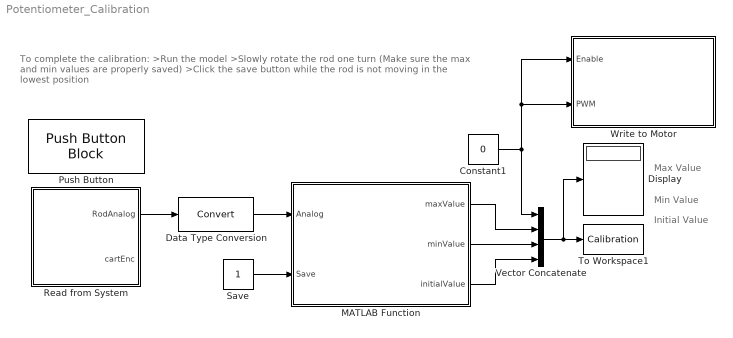
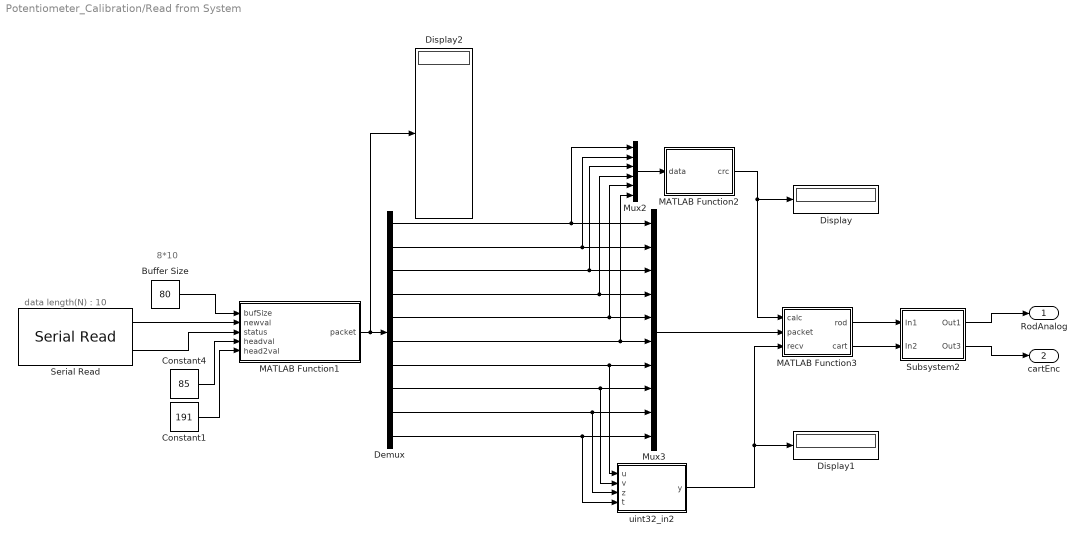
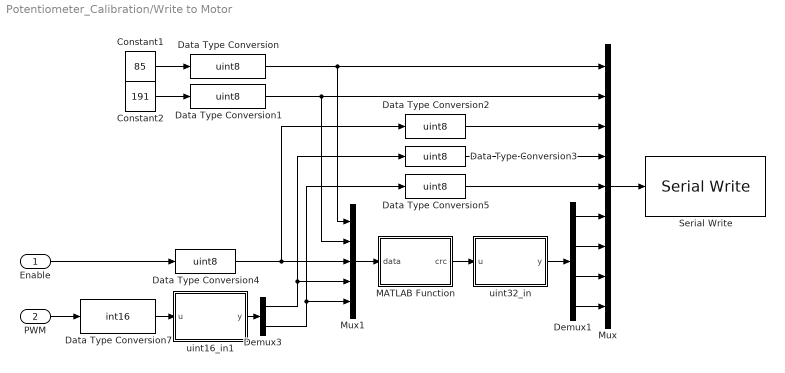
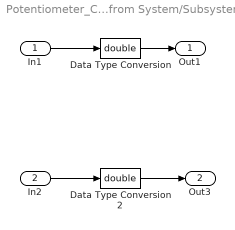
== matlab function Potentiometer_Calibration/MATLAB Function ==
function [maxValue,minValue,initialValue] = fcn(Analog,Save)
    persistent maxAnalog
    if isempty(maxAnalog)
        maxAnalog=500;
    end
    persistent minAnalog
    if isempty(minAnalog)
        minAnalog=500;
    end
    if (Analog>maxAnalog)
        maxAnalog=Analog;
    end
    if (minAnalog > Analog)
        if (Analog  ~= 0)
            minAnalog=Analog;
        end
    end
    if (Save==1)
        maxValue=maxAnalog;
        minValue=minAnalog;
        initialValue=Analog;
    else
        maxValue=500;
        minValue=500;
        initialValue=Analog;
    end
end

== matlab function Potentiometer_Calibration/Write to Motor/MATLAB Function ==
function crc = crc_32(data)

% Computes the CRC-32/MPEG-2 checksum value of a byte vector.
% Uses a left shifting (not reflected) CRC along with the 
% CRC polynomial 0x04C11DB7 and initial CRC value of 0xFFFFFFFF,
% and is not post complemented.
%--------------------------------------------------------------------------
%   Version:    130
%   Programmer: Oliver Calderbank
%   Date:       21-07-2019

% Initialize variables
crc  = uint32(hex2dec('FFFFFFFF'));
poly = uint32(hex2dec('04C11DB7'));
data = uint8(data);
temp = uint32(data);

for i = 1:length(data)
    % xor next byte to upper bits of crc
    crc = bitxor(crc,uint32(bitshift(temp(i),24)));
    for j = 1:8
        msb = bitsra(crc,31);
        crc = bitsll(crc,1);
        if msb == 1 
            crc = bitxor(crc,poly);
        end 
    end
end
end

== matlab function Potentiometer_Calibration/Write to Motor/uint16_in1 ==
function y = fcn(u)
t=typecast(int16(u),'uint8');
y = [t(1) t(2)];

== matlab function Potentiometer_Calibration/Write to Motor/uint32_in ==
function y = fcn(u)
t=typecast(uint32(u),'uint8');
y = [t(1) t(2) t(3) t(4)];

== matlab function Potentiometer_Calibration/Read from System/MATLAB Function1 ==
function packet   = fcn(bufSize,newval,status,headval,head2val)
%initializing
persistent val;
persistent bff;
persistent packetindex
if isempty(bff)
    packetindex =uint8(zeros(1,10));
end
if isempty(val)
    val=0;
    bff = zeros(bufSize,1); %initializing
    inc=0;
else
    inc=1;
end

ind =uint8( mod(val-1,bufSize) + 1); %current index
if isempty(bff)
    bff = zeros(bufSize,1); %initializing
end
if status==0  %UART Status
    for i = 1:1:10
        bff(mod(ind-1+i-1,bufSize)+1) = newval(i); %adding the circular buffer
    end
    if inc==1
        val=val+10;   
    end
end
if ind==0
    val=0;
end
buffout =uint8( bff((1:80)));  % whole buffer
head=uint8(find(bff(ind+1:end)==headval)+double(ind)); %finding first header
if isempty(head)
    head=uint8(find(bff(1:end)==headval));
end
if bff(mod(head(1),bufSize)+1)==head2val %header2 check
    packetindex=[mod(head(1)-1,bufSize)+1 mod(head(1),bufSize)+1 mod(head(1)+1,bufSize)+1 mod(head(1)+2,bufSize)+1 ... %adding correct package's index to array
                 mod(head(1)+3,bufSize)+1 mod(head(1)+4,bufSize)+1 mod(head(1)+5,bufSize)+1 mod(head(1)+6,bufSize)+1 mod(head(1)+7,bufSize)+1 mod(head(1)+8,bufSize)+1];
end
lastadd=uint8(bff(head(1)+1));
packet=bff(packetindex);

== matlab function Potentiometer_Calibration/Read from System/MATLAB Function2 ==
function crc = crc_32(data)

% Computes the CRC-32/MPEG-2 checksum value of a byte vector.
% Uses a left shifting (not reflected) CRC along with the 
% CRC polynomial 0x04C11DB7 and initial CRC value of 0xFFFFFFFF,
% and is not post complemented.
%--------------------------------------------------------------------------
%   Version:    130
%   Programmer: Oliver Calderbank
%   Date:       21-07-2019

% Initialize variables
crc  = uint32(hex2dec('FFFFFFFF'));
poly = uint32(hex2dec('04C11DB7'));
data = uint8(data);
temp = uint32(data);

for i = 1:length(data)
    % xor next byte to upper bits of crc
    crc = bitxor(crc,uint32(bitshift(temp(i),24)));
    for j = 1:8
        msb = bitsra(crc,31);
        crc = bitsll(crc,1);
        if msb == 1 
            crc = bitxor(crc,poly);
        end 
    end
end
end

== matlab function Potentiometer_Calibration/Read from System/MATLAB Function3 ==
function [rod,cart] = fcn(calc,packet,recv)
persistent validpack;
persistent validpack2;
if isempty(validpack)
    Axisx=[packet(3) packet(4)];
    validpack=typecast(uint8(Axisx),'int16');
end
if isempty(validpack2)
    Axisy=[packet(5) packet(6)];
    validpack2=typecast(uint8(Axisy),'int16');
end
if calc==recv
    Axisx=[packet(3) packet(4)];
    validpack=typecast(uint8(Axisx),'int16');
    Axisy=[packet(5) packet(6)];
    validpack2=typecast(uint8(Axisy),'int16');
    rod=validpack;
    cart=validpack2;
else
	rod=validpack;
    cart=validpack2;
end

== matlab function Potentiometer_Calibration/Read from System/uint32_in2 ==
function y = fcn(u,v,z,t)
x=[u v z t];
k=typecast(uint8(x),'uint32');
y = k;

/*
 * Academic License - for use in teaching, academic research, and meeting
 * course requirements at degree granting institutions only.  Not for
 * government, commercial, or other organizational use.
 *
 * File: Potentiometer_Calibration.c
 *
 * Code generated for Simulink model 'Potentiometer_Calibration'.
 *
 * Model version                  : 16.1
 * Simulink Coder version         : 25.1 (R2025a) 21-Nov-2024
 * C/C++ source code generated on : Tue Mar 31 16:47:10 2026
 *
 * Target selection: ert.tlc
 * Embedded hardware selection: ARM Compatible->ARM Cortex-A (64-bit)
 * Code generation objectives: Unspecified
 * Validation result: Not run
 */

#include "Potentiometer_Calibration.h"
#include "rtwtypes.h"
#include "Potentiometer_Calibration_types.h"
#include <string.h>
#include "Potentiometer_Calibration_private.h"
#include "rt_nonfinite.h"
#include <math.h>
#include <stddef.h>

/* Block signals (default storage) */
B_Potentiometer_Calibration_T Potentiometer_Calibration_B;

/* Block states (default storage) */
DW_Potentiometer_Calibration_T Potentiometer_Calibration_DW;

/* Real-time model */
static RT_MODEL_Potentiometer_Calibr_T Potentiometer_Calibration_M_;
RT_MODEL_Potentiometer_Calibr_T *const Potentiometer_Calibration_M =
  &Potentiometer_Calibration_M_;

/* Forward declaration for local functions */
static void Potentiometer_Calibrat_eml_find(const boolean_T x_data[], const
  int32_T *x_size, int32_T i_data[], int32_T *i_size);
static void Potentiometer__SystemCore_setup(codertarget_raspi_internal_SC_T *obj);
static void Potentiomete_SCIWrite_setupImpl(codertarget_raspi_internal__h_T *obj);
real_T rt_roundd_snf(real_T u)
{
  real_T y;
  if (fabs(u) < 4.503599627370496E+15) {
    if (u >= 0.5) {
      y = floor(u + 0.5);
    } else if (u > -0.5) {
      y = u * 0.0;
    } else {
      y = ceil(u - 0.5);
    }
  } else {
    y = u;
  }

  return y;
}

/* Function for MATLAB Function: '<S2>/MATLAB Function1' */
static void Potentiometer_Calibrat_eml_find(const boolean_T x_data[], const
  int32_T *x_size, int32_T i_data[], int32_T *i_size)
{
  int32_T idx;
  int32_T ii;
  boolean_T exitg1;
  idx = 0;
  *i_size = *x_size;
  ii = 0;
  exitg1 = false;
  while ((!exitg1) && (ii <= *x_size - 1)) {
    if (x_data[ii]) {
      idx++;
      i_data[idx - 1] = ii + 1;
      if (idx >= *x_size) {
        exitg1 = true;
      } else {
        ii++;
      }
    } else {
      ii++;
    }
  }

  if (*x_size == 1) {
    if (idx == 0) {
      *i_size = 0;
    }
  } else if (idx < 1) {
    *i_size = 0;
  } else {
    *i_size = idx;
  }
}

static void Potentiometer__SystemCore_setup(codertarget_raspi_internal_SC_T *obj)
{
  void* SCIModuleVoidPtr;
  int32_T i;
  char_T b_SCIModuleLoc[13];
  static const char_T b_SCIModuleLoc_0[13] = "/dev/serial0";

  /* Start for MATLABSystem: '<S2>/Serial Read' */
  obj->isInitialized = 1;
  for (i = 0; i < 13; i++) {
    /* Start for MATLABSystem: '<S2>/Serial Read' */
    b_SCIModuleLoc[i] = b_SCIModuleLoc_0[i];
  }

  SCIModuleVoidPtr = (void*)(&b_SCIModuleLoc[0]);

  /* Start for MATLABSystem: '<S2>/Serial Read' */
  obj->MW_SCIHANDLE = MW_SCI_Open(SCIModuleVoidPtr, true, MW_UNDEFINED_VALUE,
    MW_UNDEFINED_VALUE);
  MW_SCI_SetBaudrate(obj->MW_SCIHANDLE, 115200U);
  MW_SCI_SetFrameFormat(obj->MW_SCIHANDLE, 8, MW_SCI_PARITY_NONE,
                        MW_SCI_STOPBITS_1);
  obj->isSetupComplete = true;
}

static void Potentiomete_SCIWrite_setupImpl(codertarget_raspi_internal__h_T *obj)
{
  void* SCIModuleVoidPtr;
  int32_T i;
  char_T b_SCIModuleLoc[13];
  static const char_T b_SCIModuleLoc_0[13] = "/dev/serial0";
  for (i = 0; i < 13; i++) {
    /* Start for MATLABSystem: '<S3>/Serial Write' */
    b_SCIModuleLoc[i] = b_SCIModuleLoc_0[i];
  }

  SCIModuleVoidPtr = (void*)(&b_SCIModuleLoc[0]);

  /* Start for MATLABSystem: '<S3>/Serial Write' */
  obj->MW_SCIHANDLE = MW_SCI_Open(SCIModuleVoidPtr, true, MW_UNDEFINED_VALUE,
    MW_UNDEFINED_VALUE);
  MW_SCI_SetBaudrate(obj->MW_SCIHANDLE, 115200U);
  MW_SCI_SetFrameFormat(obj->MW_SCIHANDLE, 8, MW_SCI_PARITY_NONE,
                        MW_SCI_STOPBITS_1);
}

/* Model step function */
void Potentiometer_Calibration_step(void)
{
  real_T b_r;
  real_T tmp;
  int32_T tmp_data_0[255];
  int32_T i;
  int32_T i_0;
  int32_T inc;
  int32_T loop_ub;
  uint32_T qY;
  uint32_T rtb_crc;
  int16_T rtb_rod;
  uint8_T head_data[255];
  uint8_T RxDataLocChar[10];
  uint8_T rtb_SerialRead_o1_0[10];
  uint8_T TxDataLocChar[9];
  uint8_T rtb_TmpSignalConversionAtSerial[9];
  uint8_T rtb_TmpSignalConversionAtSFunct[5];
  uint8_T t_0[4];
  uint8_T t[2];
  uint8_T d_x;
  uint8_T e_x;
  uint8_T f_x;
  uint8_T g_x;
  uint8_T h_x;
  uint8_T i_x;
  uint8_T j_x;
  uint8_T rtb_DataTypeConversion4;
  uint8_T status;
  uint8_T xi;
  boolean_T tmp_data[255];

  /* SignalConversion generated from: '<Root>/Vector Concatenate' incorporates:
   *  Concatenate: '<Root>/Vector Concatenate'
   *  Constant: '<Root>/Constant1'
   */
  Potentiometer_Calibration_B.VectorConcatenate[0] =
    Potentiometer_Calibration_P.Constant1_Value;

  /* MATLABSystem: '<S2>/Serial Read' */
  status = MW_SCI_Receive(Potentiometer_Calibration_DW.obj.MW_SCIHANDLE,
    &RxDataLocChar[0], 10U);
  memcpy((void *)&rtb_SerialRead_o1_0[0], (void *)&RxDataLocChar[0], (uint32_T)
         ((size_t)10 * sizeof(uint8_T)));

  /* MATLAB Function: '<S2>/MATLAB Function1' incorporates:
   *  Constant: '<S2>/Buffer Size'
   *  Constant: '<S2>/Constant1'
   *  Constant: '<S2>/Constant4'
   *  MATLABSystem: '<S2>/Serial Read'
   * */
  if (!Potentiometer_Calibration_DW.bff_not_empty) {
    for (i = 0; i < 10; i++) {
      Potentiometer_Calibration_DW.packetindex[i] = 0U;
    }
  }

  if (!Potentiometer_Calibration_DW.val_not_empty) {
    Potentiometer_Calibration_DW.val_not_empty = true;
    Potentiometer_Calibration_DW.bff.size =
      Potentiometer_Calibration_P.BufferSize_Value;
    loop_ub = Potentiometer_Calibration_P.BufferSize_Value;
    if (loop_ub - 1 >= 0) {
      memset(&Potentiometer_Calibration_DW.bff.data[0], 0, (uint32_T)loop_ub *
             sizeof(real_T));
    }

    Potentiometer_Calibration_DW.bff_not_empty =
      (Potentiometer_Calibration_DW.bff.size != 0);
    inc = 0;
  } else {
    inc = 1;
  }

  b_r = rt_roundd_snf(Potentiometer_Calibration_DW.val - 1.0);
  if (b_r < 256.0) {
    if (b_r >= 0.0) {
      xi = (uint8_T)b_r;
    } else {
      xi = 0U;
    }
  } else {
    xi = MAX_uint8_T;
  }

  if (Potentiometer_Calibration_DW.val - 1.0 == xi) {
    if (Potentiometer_Calibration_P.BufferSize_Value != 0) {
      xi -= (uint8_T)((uint8_T)((uint32_T)xi /
        Potentiometer_Calibration_P.BufferSize_Value) *
                      Potentiometer_Calibration_P.BufferSize_Value);
    }
  } else {
    if (Potentiometer_Calibration_P.BufferSize_Value == 0) {
      b_r = Potentiometer_Calibration_DW.val - 1.0;
      if (Potentiometer_Calibration_DW.val - 1.0 == 0.0) {
        b_r = 0.0;
      }
    } else if (rtIsInf(Potentiometer_Calibration_DW.val - 1.0)) {
      b_r = (rtNaN);
    } else {
      b_r = fmod(Potentiometer_Calibration_DW.val - 1.0,
                 Potentiometer_Calibration_P.BufferSize_Value);
      if (b_r == 0.0) {
        b_r = 0.0;
      } else if (b_r < 0.0) {
        b_r = (real_T)Potentiometer_Calibration_P.BufferSize_Value - 1.0;
      }
    }

    b_r = rt_roundd_snf(b_r);
    if (b_r < 256.0) {
      if (b_r >= 0.0) {
        xi = (uint8_T)b_r;
      } else {
        xi = 0U;
      }
    } else {
      xi = MAX_uint8_T;
    }
  }

  qY = xi + 1U;
  if (xi + 1U > 255U) {
    qY = 255U;
  }

  if (!Potentiometer_Calibration_DW.bff_not_empty) {
    Potentiometer_Calibration_DW.bff.size =
      Potentiometer_Calibration_P.BufferSize_Value;
    loop_ub = Potentiometer_Calibration_P.BufferSize_Value;
    if (loop_ub - 1 >= 0) {
      memset(&Potentiometer_Calibration_DW.bff.data[0], 0, (uint32_T)loop_ub *
             sizeof(real_T));
    }

    Potentiometer_Calibration_DW.bff_not_empty =
      (Potentiometer_Calibration_DW.bff.size != 0);
  }

  if (status == 0) {
    for (i = 0; i < 10; i++) {
      i_0 = (uint8_T)qY + i;
      if (i_0 > 255) {
        i_0 = 255;
      }

      status = (uint8_T)(i_0 - 1);
      if (Potentiometer_Calibration_P.BufferSize_Value != 0) {
        status = (uint8_T)((uint8_T)(i_0 - 1) - (uint8_T)((uint8_T)((uint32_T)
          (uint8_T)(i_0 - 1) / Potentiometer_Calibration_P.BufferSize_Value) *
          Potentiometer_Calibration_P.BufferSize_Value));
      }

      rtb_crc = status + 1U;
      if (status + 1U > 255U) {
        rtb_crc = 255U;
      }

      Potentiometer_Calibration_DW.bff.data[(int32_T)rtb_crc - 1] =
        rtb_SerialRead_o1_0[i];
    }

    if (inc == 1) {
      Potentiometer_Calibration_DW.val += 10.0;
    }
  }

  rtb_crc = (uint8_T)qY + 1U;
  if ((uint8_T)qY + 1U > 255U) {
    rtb_crc = 255U;
  }

  if ((uint8_T)rtb_crc > Potentiometer_Calibration_DW.bff.size) {
    i = 0;
    inc = 0;
  } else {
    i = (uint8_T)rtb_crc - 1;
    inc = Potentiometer_Calibration_DW.bff.size;
  }

  loop_ub = inc - i;
  for (i_0 = 0; i_0 < loop_ub; i_0++) {
    tmp_data[i_0] = (Potentiometer_Calibration_DW.bff.data[i + i_0] ==
                     Potentiometer_Calibration_P.Constant4_Value);
  }

  Potentiometer_Calibrat_eml_find(tmp_data, &loop_ub, tmp_data_0, &inc);
  for (i_0 = 0; i_0 < inc; i_0++) {
    b_r = (real_T)tmp_data_0[i_0] + (real_T)(uint8_T)qY;
    if (b_r < 256.0) {
      if (b_r >= 0.0) {
        head_data[i_0] = (uint8_T)b_r;
      } else {
        head_data[i_0] = 0U;
      }
    } else {
      head_data[i_0] = MAX_uint8_T;
    }
  }

  if (inc == 0) {
    loop_ub = Potentiometer_Calibration_DW.bff.size;
    i = Potentiometer_Calibration_DW.bff.size;
    for (i_0 = 0; i_0 < loop_ub; i_0++) {
      tmp_data[i_0] = (Potentiometer_Calibration_DW.bff.data[i_0] ==
                       Potentiometer_Calibration_P.Constant4_Value);
    }

    Potentiometer_Calibrat_eml_find(tmp_data, &i, tmp_data_0, &inc);
    for (i_0 = 0; i_0 < inc; i_0++) {
      i = tmp_data_0[i_0];
      if (i < 0) {
        i = 0;
      } else if (i > 255) {
        i = 255;
      }

      head_data[i_0] = (uint8_T)i;
    }
  }

  if (Potentiometer_Calibration_P.BufferSize_Value == 0) {
    xi = head_data[0];
  } else {
    xi = (uint8_T)(head_data[0] - (uint8_T)((uint8_T)((uint32_T)head_data[0] /
      Potentiometer_Calibration_P.BufferSize_Value) *
      Potentiometer_Calibration_P.BufferSize_Value));
  }

  qY = xi + 1U;
  if (xi + 1U > 255U) {
    qY = 255U;
  }

  if (Potentiometer_Calibration_DW.bff.data[(int32_T)qY - 1] ==
      Potentiometer_Calibration_P.Constant1_Value_k) {
    qY = head_data[0] -
      /*MW:operator MISRA2012:D4.1 CERT-C:INT30-C 'Justifying MISRA C rule violation'*/
      /*MW:OvSatOk*/ 1U;
    if (head_data[0] - 1U > head_data[0]) {
      qY = 0U;
    }

    xi = (uint8_T)qY;
    if (Potentiometer_Calibration_P.BufferSize_Value == 0) {
      status = head_data[0];
    } else {
      xi = (uint8_T)((uint8_T)qY - (uint8_T)((uint8_T)((uint32_T)(uint8_T)qY /
        Potentiometer_Calibration_P.BufferSize_Value) *
        Potentiometer_Calibration_P.BufferSize_Value));
      status = (uint8_T)(head_data[0] - (uint8_T)((uint8_T)((uint32_T)head_data
        [0] / Potentiometer_Calibration_P.BufferSize_Value) *
        Potentiometer_Calibration_P.BufferSize_Value));
    }

    qY = head_data[0] + 1U;
    if (head_data[0] + 1U > 255U) {
      qY = 255U;
    }

    rtb_DataTypeConversion4 = (uint8_T)qY;
    if (Potentiometer_Calibration_P.BufferSize_Value != 0) {
      rtb_DataTypeConversion4 = (uint8_T)((uint8_T)qY - (uint8_T)((uint8_T)
        ((uint32_T)(uint8_T)qY / Potentiometer_Calibration_P.BufferSize_Value) *
        Potentiometer_Calibration_P.BufferSize_Value));
    }

    qY = head_data[0] + 2U;
    if (head_data[0] + 2U > 255U) {
      qY = 255U;
    }

    d_x = (uint8_T)qY;
    if (Potentiometer_Calibration_P.BufferSize_Value != 0) {
      d_x = (uint8_T)((uint8_T)qY - (uint8_T)((uint8_T)((uint32_T)(uint8_T)qY /
        Potentiometer_Calibration_P.BufferSize_Value) *
        Potentiometer_Calibration_P.BufferSize_Value));
    }

    qY = head_data[0] + 3U;
    if (head_data[0] + 3U > 255U) {
      qY = 255U;
    }

    e_x = (uint8_T)qY;
    if (Potentiometer_Calibration_P.BufferSize_Value != 0) {
      e_x = (uint8_T)((uint8_T)qY - (uint8_T)((uint8_T)((uint32_T)(uint8_T)qY /
        Potentiometer_Calibration_P.BufferSize_Value) *
        Potentiometer_Calibration_P.BufferSize_Value));
    }

    qY = head_data[0] + 4U;
    if (head_data[0] + 4U > 255U) {
      qY = 255U;
    }

    f_x = (uint8_T)qY;
    if (Potentiometer_Calibration_P.BufferSize_Value != 0) {
      f_x = (uint8_T)((uint8_T)qY - (uint8_T)((uint8_T)((uint32_T)(uint8_T)qY /
        Potentiometer_Calibration_P.BufferSize_Value) *
        Potentiometer_Calibration_P.BufferSize_Value));
    }

    qY = head_data[0] + 5U;
    if (head_data[0] + 5U > 255U) {
      qY = 255U;
    }

    g_x = (uint8_T)qY;
    if (Potentiometer_Calibration_P.BufferSize_Value != 0) {
      g_x = (uint8_T)((uint8_T)qY - (uint8_T)((uint8_T)((uint32_T)(uint8_T)qY /
        Potentiometer_Calibration_P.BufferSize_Value) *
        Potentiometer_Calibration_P.BufferSize_Value));
    }

    qY = head_data[0] + 6U;
    if (head_data[0] + 6U > 255U) {
      qY = 255U;
    }

    h_x = (uint8_T)qY;
    if (Potentiometer_Calibration_P.BufferSize_Value != 0) {
      h_x = (uint8_T)((uint8_T)qY - (uint8_T)((uint8_T)((uint32_T)(uint8_T)qY /
        Potentiometer_Calibration_P.BufferSize_Value) *
        Potentiometer_Calibration_P.BufferSize_Value));
    }

    qY = head_data[0] + 7U;
    if (head_data[0] + 7U > 255U) {
      qY = 255U;
    }

    i_x = (uint8_T)qY;
    if (Potentiometer_Calibration_P.BufferSize_Value != 0) {
      i_x = (uint8_T)((uint8_T)qY - (uint8_T)((uint8_T)((uint32_T)(uint8_T)qY /
        Potentiometer_Calibration_P.BufferSize_Value) *
        Potentiometer_Calibration_P.BufferSize_Value));
    }

    qY = head_data[0] + 8U;
    if (head_data[0] + 8U > 255U) {
      qY = 255U;
    }

    j_x = (uint8_T)qY;
    if (Potentiometer_Calibration_P.BufferSize_Value != 0) {
      j_x = (uint8_T)((uint8_T)qY - (uint8_T)((uint8_T)((uint32_T)(uint8_T)qY /
        Potentiometer_Calibration_P.BufferSize_Value) *
        Potentiometer_Calibration_P.BufferSize_Value));
    }

    qY = xi + 1U;
    if (xi + 1U > 255U) {
      qY = 255U;
    }

    Potentiometer_Calibration_DW.packetindex[0] = (uint8_T)qY;
    qY = status + 1U;
    if (status + 1U > 255U) {
      qY = 255U;
    }

    Potentiometer_Calibration_DW.packetindex[1] = (uint8_T)qY;
    qY = rtb_DataTypeConversion4 + 1U;
    if (rtb_DataTypeConversion4 + 1U > 255U) {
      qY = 255U;
    }

    Potentiometer_Calibration_DW.packetindex[2] = (uint8_T)qY;
    qY = d_x + 1U;
    if (d_x + 1U > 255U) {
      qY = 255U;
    }

    Potentiometer_Calibration_DW.packetindex[3] = (uint8_T)qY;
    qY = e_x + 1U;
    if (e_x + 1U > 255U) {
      qY = 255U;
    }

    Potentiometer_Calibration_DW.packetindex[4] = (uint8_T)qY;
    qY = f_x + 1U;
    if (f_x + 1U > 255U) {
      qY = 255U;
    }

    Potentiometer_Calibration_DW.packetindex[5] = (uint8_T)qY;
    qY = g_x + 1U;
    if (g_x + 1U > 255U) {
      qY = 255U;
    }

    Potentiometer_Calibration_DW.packetindex[6] = (uint8_T)qY;
    qY = h_x + 1U;
    if (h_x + 1U > 255U) {
      qY = 255U;
    }

    Potentiometer_Calibration_DW.packetindex[7] = (uint8_T)qY;
    qY = i_x + 1U;
    if (i_x + 1U > 255U) {
      qY = 255U;
    }

    Potentiometer_Calibration_DW.packetindex[8] = (uint8_T)qY;
    qY = j_x + 1U;
    if (j_x + 1U > 255U) {
      qY = 255U;
    }

    Potentiometer_Calibration_DW.packetindex[9] = (uint8_T)qY;
  }

  for (i_0 = 0; i_0 < 10; i_0++) {
    Potentiometer_Calibration_B.packet[i_0] =
      Potentiometer_Calibration_DW.bff.data[Potentiometer_Calibration_DW.packetindex
      [i_0] - 1];
  }

  /* End of MATLAB Function: '<S2>/MATLAB Function1' */

  /* MATLAB Function: '<S2>/MATLAB Function2' */
  Potentiometer_Calibration_B.crc = MAX_uint32_T;
  for (i = 0; i < 6; i++) {
    b_r = rt_roundd_snf(Potentiometer_Calibration_B.packet[i]);
    if (b_r < 256.0) {
      if (b_r >= 0.0) {
        status = (uint8_T)b_r;
      } else {
        status = 0U;
      }
    } else {
      status = MAX_uint8_T;
    }

    Potentiometer_Calibration_B.crc ^= (uint32_T)status << 24;
    for (inc = 0; inc < 8; inc++) {
      qY = Potentiometer_Calibration_B.crc >> 31;
      Potentiometer_Calibration_B.crc <<= 1;
      if (qY == 1U) {
        Potentiometer_Calibration_B.crc ^= 79764919U;
      }
    }
  }

  /* End of MATLAB Function: '<S2>/MATLAB Function2' */

  /* MATLAB Function: '<S2>/uint32_in2' */
  b_r = rt_roundd_snf(Potentiometer_Calibration_B.packet[6]);
  if (b_r < 256.0) {
    if (b_r >= 0.0) {
      t_0[0] = (uint8_T)b_r;
    } else {
      t_0[0] = 0U;
    }
  } else {
    t_0[0] = MAX_uint8_T;
  }

  b_r = rt_roundd_snf(Potentiometer_Calibration_B.packet[7]);
  if (b_r < 256.0) {
    if (b_r >= 0.0) {
      t_0[1] = (uint8_T)b_r;
    } else {
      t_0[1] = 0U;
    }
  } else {
    t_0[1] = MAX_uint8_T;
  }

  b_r = rt_roundd_snf(Potentiometer_Calibration_B.packet[8]);
  if (b_r < 256.0) {
    if (b_r >= 0.0) {
      t_0[2] = (uint8_T)b_r;
    } else {
      t_0[2] = 0U;
    }
  } else {
    t_0[2] = MAX_uint8_T;
  }

  b_r = rt_roundd_snf(Potentiometer_Calibration_B.packet[9]);
  if (b_r < 256.0) {
    if (b_r >= 0.0) {
      t_0[3] = (uint8_T)b_r;
    } else {
      t_0[3] = 0U;
    }
  } else {
    t_0[3] = MAX_uint8_T;
  }

  memcpy((void *)&Potentiometer_Calibration_B.y, (void *)&t_0[0], (uint32_T)
         ((size_t)1 * sizeof(uint32_T)));

  /* End of MATLAB Function: '<S2>/uint32_in2' */

  /* MATLAB Function: '<S2>/MATLAB Function3' */
  if (!Potentiometer_Calibration_DW.validpack_not_empty) {
    b_r = rt_roundd_snf(Potentiometer_Calibration_B.packet[2]);
    if (b_r < 256.0) {
      if (b_r >= 0.0) {
        t[0] = (uint8_T)b_r;
      } else {
        t[0] = 0U;
      }
    } else {
      t[0] = MAX_uint8_T;
    }

    b_r = rt_roundd_snf(Potentiometer_Calibration_B.packet[3]);
    if (b_r < 256.0) {
      if (b_r >= 0.0) {
        t[1] = (uint8_T)b_r;
      } else {
        t[1] = 0U;
      }
    } else {
      t[1] = MAX_uint8_T;
    }

    memcpy((void *)&Potentiometer_Calibration_DW.validpack, (void *)&t[0],
           (uint32_T)((size_t)1 * sizeof(int16_T)));
    Potentiometer_Calibration_DW.validpack_not_empty = true;
  }

  if (!Potentiometer_Calibration_DW.validpack2_not_empty) {
    b_r = rt_roundd_snf(Potentiometer_Calibration_B.packet[4]);
    if (b_r < 256.0) {
      if (b_r >= 0.0) {
        t[0] = (uint8_T)b_r;
      } else {
        t[0] = 0U;
      }
    } else {
      t[0] = MAX_uint8_T;
    }

    b_r = rt_roundd_snf(Potentiometer_Calibration_B.packet[5]);
    if (b_r < 256.0) {
      if (b_r >= 0.0) {
        t[1] = (uint8_T)b_r;
      } else {
        t[1] = 0U;
      }
    } else {
      t[1] = MAX_uint8_T;
    }

    memcpy((void *)&Potentiometer_Calibration_DW.validpack2, (void *)&t[0],
           (uint32_T)((size_t)1 * sizeof(int16_T)));
    Potentiometer_Calibration_DW.validpack2_not_empty = true;
  }

  if (Potentiometer_Calibration_B.crc == Potentiometer_Calibration_B.y) {
    b_r = rt_roundd_snf(Potentiometer_Calibration_B.packet[2]);
    if (b_r < 256.0) {
      if (b_r >= 0.0) {
        t[0] = (uint8_T)b_r;
      } else {
        t[0] = 0U;
      }
    } else {
      t[0] = MAX_uint8_T;
    }

    b_r = rt_roundd_snf(Potentiometer_Calibration_B.packet[3]);
    if (b_r < 256.0) {
      if (b_r >= 0.0) {
        t[1] = (uint8_T)b_r;
      } else {
        t[1] = 0U;
      }
    } else {
      t[1] = MAX_uint8_T;
    }

    memcpy((void *)&Potentiometer_Calibration_DW.validpack, (void *)&t[0],
           (uint32_T)((size_t)1 * sizeof(int16_T)));
    b_r = rt_roundd_snf(Potentiometer_Calibration_B.packet[4]);
    if (b_r < 256.0) {
      if (b_r >= 0.0) {
        t[0] = (uint8_T)b_r;
      } else {
        t[0] = 0U;
      }
    } else {
      t[0] = MAX_uint8_T;
    }

    b_r = rt_roundd_snf(Potentiometer_Calibration_B.packet[5]);
    if (b_r < 256.0) {
      if (b_r >= 0.0) {
        t[1] = (uint8_T)b_r;
      } else {
        t[1] = 0U;
      }
    } else {
      t[1] = MAX_uint8_T;
    }

    memcpy((void *)&Potentiometer_Calibration_DW.validpack2, (void *)&t[0],
           (uint32_T)((size_t)1 * sizeof(int16_T)));
    rtb_rod = Potentiometer_Calibration_DW.validpack;
  } else {
    rtb_rod = Potentiometer_Calibration_DW.validpack;
  }

  /* End of MATLAB Function: '<S2>/MATLAB Function3' */

  /* MATLAB Function: '<Root>/MATLAB Function' incorporates:
   *  Concatenate: '<Root>/Vector Concatenate'
   *  Constant: '<Root>/Save'
   *  DataTypeConversion: '<S7>/Data Type Conversion'
   */
  if (rtb_rod > Potentiometer_Calibration_DW.maxAnalog) {
    Potentiometer_Calibration_DW.maxAnalog = rtb_rod;
  }

  if ((Potentiometer_Calibration_DW.minAnalog > rtb_rod) && (rtb_rod != 0)) {
    Potentiometer_Calibration_DW.minAnalog = rtb_rod;
  }

  if (Potentiometer_Calibration_P.Save_Value == 1.0) {
    Potentiometer_Calibration_B.VectorConcatenate[1] =
      Potentiometer_Calibration_DW.maxAnalog;
    Potentiometer_Calibration_B.VectorConcatenate[2] =
      Potentiometer_Calibration_DW.minAnalog;
    Potentiometer_Calibration_B.VectorConcatenate[3] = rtb_rod;
  } else {
    Potentiometer_Calibration_B.VectorConcatenate[1] = 500.0;
    Potentiometer_Calibration_B.VectorConcatenate[2] = 500.0;
    Potentiometer_Calibration_B.VectorConcatenate[3] = rtb_rod;
  }

  /* End of MATLAB Function: '<Root>/MATLAB Function' */
  /* DataTypeConversion: '<S3>/Data Type Conversion' incorporates:
   *  Constant: '<S3>/Constant1'
   */
  b_r = floor(Potentiometer_Calibration_P.Constant1_Value_h);
  if (rtIsNaN(b_r) || rtIsInf(b_r)) {
    b_r = 0.0;
  } else {
    b_r = fmod(b_r, 256.0);
  }

  xi = (uint8_T)(b_r < 0.0 ? (int32_T)(uint8_T)-(int8_T)(uint8_T)-b_r : (int32_T)
                 (uint8_T)b_r);

  /* End of DataTypeConversion: '<S3>/Data Type Conversion' */

  /* DataTypeConversion: '<S3>/Data Type Conversion1' incorporates:
   *  Constant: '<S3>/Constant2'
   */
  b_r = floor(Potentiometer_Calibration_P.Constant2_Value);
  if (rtIsNaN(b_r) || rtIsInf(b_r)) {
    b_r = 0.0;
  } else {
    b_r = fmod(b_r, 256.0);
  }

  status = (uint8_T)(b_r < 0.0 ? (int32_T)(uint8_T)-(int8_T)(uint8_T)-b_r :
                     (int32_T)(uint8_T)b_r);

  /* End of DataTypeConversion: '<S3>/Data Type Conversion1' */

  /* DataTypeConversion: '<S3>/Data Type Conversion4' incorporates:
   *  Constant: '<Root>/Constant1'
   *  DataTypeConversion: '<S3>/Data Type Conversion7'
   */
  b_r = floor(Potentiometer_Calibration_P.Constant1_Value);
  if (rtIsNaN(b_r) || rtIsInf(b_r)) {
    tmp = 0.0;
    b_r = 0.0;
  } else {
    tmp = fmod(b_r, 256.0);
    b_r = fmod(b_r, 65536.0);
  }

  rtb_DataTypeConversion4 = (uint8_T)(tmp < 0.0 ? (int32_T)(uint8_T)-(int8_T)
    (uint8_T)-tmp : (int32_T)(uint8_T)tmp);

  /* End of DataTypeConversion: '<S3>/Data Type Conversion4' */

  /* DataTypeConversion: '<S3>/Data Type Conversion7' */
  rtb_rod = (int16_T)(b_r < 0.0 ? (int32_T)(int16_T)-(int16_T)(uint16_T)-b_r :
                      (int32_T)(int16_T)(uint16_T)b_r);

  /* MATLAB Function: '<S3>/uint16_in1' */
  memcpy((void *)&t[0], (void *)&rtb_rod, (uint32_T)((size_t)2 * sizeof(uint8_T)));

  /* SignalConversion generated from: '<S9>/ SFunction ' incorporates:
   *  MATLAB Function: '<S3>/MATLAB Function'
   *  MATLAB Function: '<S3>/uint16_in1'
   */
  rtb_TmpSignalConversionAtSFunct[0] = xi;
  rtb_TmpSignalConversionAtSFunct[1] = status;
  rtb_TmpSignalConversionAtSFunct[2] = rtb_DataTypeConversion4;
  rtb_TmpSignalConversionAtSFunct[3] = t[0];
  rtb_TmpSignalConversionAtSFunct[4] = t[1];

  /* MATLAB Function: '<S3>/MATLAB Function' */
  rtb_crc = MAX_uint32_T;
  for (i = 0; i < 5; i++) {
    rtb_crc ^= (uint32_T)rtb_TmpSignalConversionAtSFunct[i] << 24;
    for (inc = 0; inc < 8; inc++) {
      qY = rtb_crc >> 31;
      rtb_crc <<= 1;
      if (qY == 1U) {
        rtb_crc ^= 79764919U;
      }
    }
  }

  /* MATLAB Function: '<S3>/uint32_in' */
  memcpy((void *)&t_0[0], (void *)&rtb_crc, (uint32_T)((size_t)4 * sizeof
          (uint8_T)));

  /* SignalConversion generated from: '<S3>/Serial Write' incorporates:
   *  MATLAB Function: '<S3>/uint16_in1'
   *  MATLAB Function: '<S3>/uint32_in'
   */
  rtb_TmpSignalConversionAtSerial[0] = xi;
  rtb_TmpSignalConversionAtSerial[1] = status;
  rtb_TmpSignalConversionAtSerial[2] = rtb_DataTypeConversion4;
  rtb_TmpSignalConversionAtSerial[3] = t[0];
  rtb_TmpSignalConversionAtSerial[4] = t[1];
  rtb_TmpSignalConversionAtSerial[5] = t_0[0];
  rtb_TmpSignalConversionAtSerial[6] = t_0[1];
  rtb_TmpSignalConversionAtSerial[7] = t_0[2];
  rtb_TmpSignalConversionAtSerial[8] = t_0[3];

  /* MATLABSystem: '<S3>/Serial Write' */
  memcpy((void *)&TxDataLocChar[0], (void *)&rtb_TmpSignalConversionAtSerial[0],
         (uint32_T)((size_t)9 * sizeof(uint8_T)));
  MW_SCI_Transmit(Potentiometer_Calibration_DW.obj_o.MW_SCIHANDLE,
                  &TxDataLocChar[0], 9U);

  /* Update absolute time for base rate */
  /* The "clockTick0" counts the number of times the code of this task has
   * been executed. The absolute time is the multiplication of "clockTick0"
   * and "Timing.stepSize0". Size of "clockTick0" ensures timer will not
   * overflow during the application lifespan selected.
   */
  Potentiometer_Calibration_M->Timing.taskTime0 =
    ((time_T)(++Potentiometer_Calibration_M->Timing.clockTick0)) *
    Potentiometer_Calibration_M->Timing.stepSize0;
}
